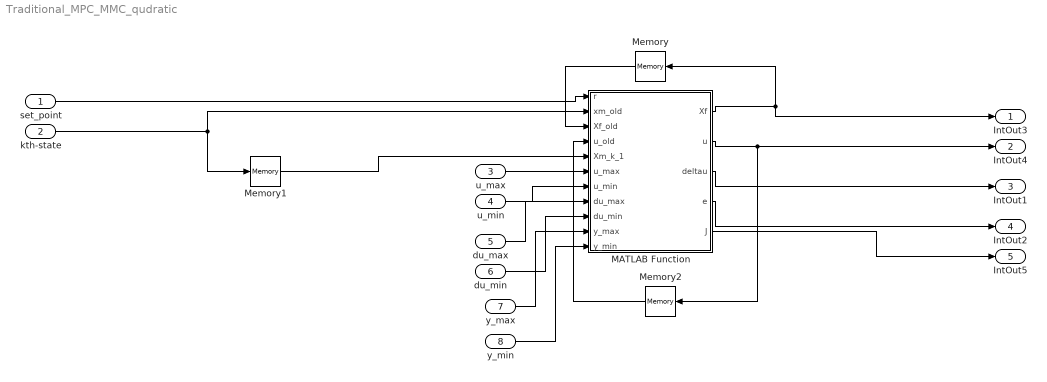
== matlab function Traditional_MPC_MMC_qudratic/MATLAB Function ==
function [Xf,u,deltau,e,J] = fcn(r,xm_old,Xf_old,u_old,Xm_k_1,u_max,u_min,du_max,du_min,y_max,y_min)
D = []; 
D= coder.load('initial_qudratic_paper_traditional_MPC.mat'); 

%%% model-plant mismatch error 
xm=D.Ap*xm_old+D.Bp*(u_old+D.up);
y_model=D.Cp*xm;
e = (y_model - xm_old); 
g = -(D.PhiT_Q_R_bar*r- D.PhiT_Q_F*(D.Xf+Xf_old)- D.PhiT_Q_Ie*(D.e+e)); 
%%% with one step output constraint there is no time over flow
B_LHS=[D.bduMax*du_max;-D.bduMin*du_min; D.Iu*(u_max-u_old);-D.Iu*(u_min-u_old);y_max-D.F(159,:)*(D.Xf+Xf_old);-y_min+D.F(159,:)*(D.Xf+Xf_old)]; %%F(4,:) indicate k+1 
%B_LHS=[D.bduMax*du_max;-D.bduMin*du_min; D.Iu*(u_max-u_old);-D.Iu*(u_min-u_old)];
%DeltaU = -D.H\g;
DeltaU = QPhild(D.H,g,D.C_LHS,B_LHS);
deltau= DeltaU(1:D.m,:);
J = DeltaU'*D.H*DeltaU + 2*DeltaU'*g;
u=D.up+u_old+deltau;
y = xm_old;
y_delta_k=y-Xm_k_1;
Xf=[y_delta_k;y];
end

/*
 * Academic License - for use in teaching, academic research, and meeting
 * course requirements at degree granting institutions only.  Not for
 * government, commercial, or other organizational use.
 *
 * File: Traditional_MPC_MMC_qudratic.c
 *
 * Code generated for Simulink model 'Traditional_MPC_MMC_qudratic'.
 *
 * Model version                  : 1.34
 * Simulink Coder version         : 9.2 (R2019b) 18-Jul-2019
 * C/C++ source code generated on : Wed Feb  9 19:52:32 2022
 *
 * Target selection: ert.tlc
 * Embedded hardware selection: 32-bit Generic
 * Code generation objectives: Unspecified
 * Validation result: Not run
 */

#include "Traditional_MPC_MMC_qudratic.h"
#include "Traditional_MPC_MMC_qudratic_private.h"

/* Block states (default storage) */
D_Work_Traditional_MPC_MMC_qudr Traditional_MPC_MMC_qudra_DWork;

/* External inputs (root inport signals with default storage) */
ExternalInputs_Traditional_MPC_ Traditional_MPC_MMC_qudratic_U;

/* External outputs (root outports fed by signals with default storage) */
ExternalOutputs_Traditional_MPC Traditional_MPC_MMC_qudratic_Y;

/* Real-time model */
RT_MODEL_Traditional_MPC_MMC_qu Traditional_MPC_MMC_qudratic_M_;
RT_MODEL_Traditional_MPC_MMC_qu *const Traditional_MPC_MMC_qudratic_M =
  &Traditional_MPC_MMC_qudratic_M_;

/* Forward declaration for local functions */
static void Traditional_MPC_MMC_qudr_xgetrf(real_T A[25], int32_T ipiv[5],
  int32_T *info);
static void Traditional_MPC_MMC_qu_mldivide(const real_T A[25], real_T B[5]);
static void Traditional_MPC_MMC__mldivide_g(const real_T A[25], real_T B[110]);
static void Traditional_MPC_MMC_qudr_QPhild(const real_T H[25], const real_T f[5],
  const real_T A_cons[110], const real_T b[22], real_T eta[5]);

/* Function for MATLAB Function: '<Root>/MATLAB Function' */
static void Traditional_MPC_MMC_qudr_xgetrf(real_T A[25], int32_T ipiv[5],
  int32_T *info)
{
  int32_T j;
  int32_T c;
  int32_T ix;
  real_T smax;
  int32_T k;
  int32_T iy;
  real_T y;
  int32_T c_ix;
  int32_T d;
  int32_T ijA;
  for (j = 0; j < 5; j++) {
    ipiv[j] = j + 1;
  }

  *info = 0;
  for (j = 0; j < 4; j++) {
    c = j * 6;
    iy = 0;
    ix = c;
    smax = fabs(A[c]);
    for (k = 2; k <= 5 - j; k++) {
      ix++;
      y = fabs(A[ix]);
      if (y > smax) {
        iy = k - 1;
        smax = y;
      }
    }

    if (A[c + iy] != 0.0) {
      if (iy != 0) {
        iy += j;
        ipiv[j] = iy + 1;
        ix = j;
        for (k = 0; k < 5; k++) {
          smax = A[ix];
          A[ix] = A[iy];
          A[iy] = smax;
          ix += 5;
          iy += 5;
        }
      }

      iy = (c - j) + 5;
      for (ix = c + 1; ix < iy; ix++) {
        A[ix] /= A[c];
      }
    } else {
      *info = j + 1;
    }

    iy = c;
    ix = c + 5;
    for (k = 0; k <= 3 - j; k++) {
      if (A[ix] != 0.0) {
        smax = -A[ix];
        c_ix = c + 1;
        d = (iy - j) + 10;
        for (ijA = iy + 6; ijA < d; ijA++) {
          A[ijA] += A[c_ix] * smax;
          c_ix++;
        }
      }

      ix += 5;
      iy += 5;
    }
  }

  if ((*info == 0) && (!(A[24] != 0.0))) {
    *info = 5;
  }
}

/* Function for MATLAB Function: '<Root>/MATLAB Function' */
static void Traditional_MPC_MMC_qu_mldivide(const real_T A[25], real_T B[5])
{
  real_T temp;
  real_T b_A[25];
  int32_T ipiv[5];
  int32_T info;
  int32_T kAcol;
  int32_T i;
  memcpy(&b_A[0], &A[0], 25U * sizeof(real_T));
  Traditional_MPC_MMC_qudr_xgetrf(b_A, ipiv, &info);
  if (ipiv[0] != 1) {
    temp = B[0];
    B[0] = B[ipiv[0] - 1];
    B[ipiv[0] - 1] = temp;
  }

  if (ipiv[1] != 2) {
    temp = B[1];
    B[1] = B[ipiv[1] - 1];
    B[ipiv[1] - 1] = temp;
  }

  if (ipiv[2] != 3) {
    temp = B[2];
    B[2] = B[ipiv[2] - 1];
    B[ipiv[2] - 1] = temp;
  }

  if (ipiv[3] != 4) {
    temp = B[3];
    B[3] = B[ipiv[3] - 1];
    B[ipiv[3] - 1] = temp;
  }

  for (info = 0; info < 5; info++) {
    kAcol = 5 * info;
    if (B[info] != 0.0) {
      for (i = info + 1; i + 1 < 6; i++) {
        B[i] -= b_A[i + kAcol] * B[info];
      }
    }
  }

  for (info = 4; info >= 0; info--) {
    kAcol = 5 * info;
    if (B[info] != 0.0) {
      B[info] /= b_A[info + kAcol];
      for (i = 0; i < info; i++) {
        B[i] -= b_A[i + kAcol] * B[info];
      }
    }
  }
}

/* Function for MATLAB Function: '<Root>/MATLAB Function' */
static void Traditional_MPC_MMC__mldivide_g(const real_T A[25], real_T B[110])
{
  real_T temp;
  int32_T ip;
  real_T b_A[25];
  int32_T ipiv[5];
  int32_T info;
  int32_T xj;
  int32_T kAcol;
  int32_T i;
  int32_T tmp;
  int32_T tmp_0;
  memcpy(&b_A[0], &A[0], 25U * sizeof(real_T));
  Traditional_MPC_MMC_qudr_xgetrf(b_A, ipiv, &info);
  for (info = 0; info < 4; info++) {
    if (info + 1 != ipiv[info]) {
      ip = ipiv[info] - 1;
      for (xj = 0; xj < 22; xj++) {
        kAcol = 5 * xj + info;
        temp = B[kAcol];
        tmp = 5 * xj + ip;
        B[kAcol] = B[tmp];
        B[tmp] = temp;
      }
    }
  }

  for (info = 0; info < 22; info++) {
    ip = 5 * info;
    for (xj = 0; xj < 5; xj++) {
      kAcol = 5 * xj;
      tmp = xj + ip;
      if (B[tmp] != 0.0) {
        for (i = xj + 2; i < 6; i++) {
          tmp_0 = (i + ip) - 1;
          B[tmp_0] -= b_A[(i + kAcol) - 1] * B[tmp];
        }
      }
    }
  }

  for (info = 0; info < 22; info++) {
    ip = 5 * info;
    for (xj = 4; xj >= 0; xj--) {
      kAcol = 5 * xj;
      tmp = xj + ip;
      if (B[tmp] != 0.0) {
        B[tmp] /= b_A[xj + kAcol];
        for (i = 0; i < xj; i++) {
          tmp_0 = i + ip;
          B[tmp_0] -= B[tmp] * b_A[i + kAcol];
        }
      }
    }
  }
}

/* Function for MATLAB Function: '<Root>/MATLAB Function' */
static void Traditional_MPC_MMC_qudr_QPhild(const real_T H[25], const real_T f[5],
  const real_T A_cons[110], const real_T b[22], real_T eta[5])
{
  real_T kk;
  real_T P[484];
  real_T d[22];
  real_T lambda[22];
  real_T b_b[110];
  real_T c_b[5];
  real_T b_b_tmp[110];
  int32_T b_i;
  int32_T i;
  real_T H_0[25];
  real_T A_cons_0;
  real_T P_0;
  int32_T i_0;
  int32_T u1_tmp;
  boolean_T exitg1;
  for (i = 0; i < 5; i++) {
    eta[i] = f[i];
  }

  for (u1_tmp = 0; u1_tmp < 25; u1_tmp++) {
    H_0[u1_tmp] = -H[u1_tmp];
  }

  Traditional_MPC_MMC_qu_mldivide(H_0, eta);
  kk = 0.0;
  for (i = 0; i < 22; i++) {
    A_cons_0 = 0.0;
    for (u1_tmp = 0; u1_tmp < 5; u1_tmp++) {
      A_cons_0 += A_cons[22 * u1_tmp + i] * eta[u1_tmp];
    }

    if (A_cons_0 > b[i]) {
      kk++;
    }
  }

  if (!(kk == 0.0)) {
    for (u1_tmp = 0; u1_tmp < 22; u1_tmp++) {
      for (i = 0; i < 5; i++) {
        b_b_tmp[i + 5 * u1_tmp] = A_cons[22 * i + u1_tmp];
      }
    }

    memcpy(&b_b[0], &b_b_tmp[0], 110U * sizeof(real_T));
    Traditional_MPC_MMC__mldivide_g(H, b_b);
    for (u1_tmp = 0; u1_tmp < 22; u1_tmp++) {
      for (i = 0; i < 22; i++) {
        b_i = i + 22 * u1_tmp;
        P[b_i] = 0.0;
        for (i_0 = 0; i_0 < 5; i_0++) {
          P[b_i] += A_cons[22 * i_0 + i] * b_b[5 * u1_tmp + i_0];
        }
      }
    }

    for (i = 0; i < 5; i++) {
      c_b[i] = f[i];
    }

    Traditional_MPC_MMC_qu_mldivide(H, c_b);
    for (i = 0; i < 22; i++) {
      kk = 0.0;
      for (u1_tmp = 0; u1_tmp < 5; u1_tmp++) {
        kk += A_cons[22 * u1_tmp + i] * c_b[u1_tmp];
      }

      d[i] = kk + b[i];
      lambda[i] = 0.0;
    }

    i = 0;
    exitg1 = false;
    while ((!exitg1) && (i < 38)) {
      kk = 0.0;
      for (b_i = 0; b_i < 22; b_i++) {
        A_cons_0 = lambda[b_i];
        P_0 = 0.0;
        for (u1_tmp = 0; u1_tmp < 22; u1_tmp++) {
          P_0 += P[22 * u1_tmp + b_i] * lambda[u1_tmp];
        }

        u1_tmp = 22 * b_i + b_i;
        P_0 = -((P_0 - P[u1_tmp] * lambda[b_i]) + d[b_i]) / P[u1_tmp];
        if ((0.0 > P_0) || rtIsNaN(P_0)) {
          lambda[b_i] = 0.0;
        } else {
          lambda[b_i] = P_0;
        }

        A_cons_0 = lambda[b_i] - A_cons_0;
        kk += A_cons_0 * A_cons_0;
      }

      if (kk < 1.0E-10) {
        exitg1 = true;
      } else {
        i++;
      }
    }

    memcpy(&b_b[0], &b_b_tmp[0], 110U * sizeof(real_T));
    Traditional_MPC_MMC__mldivide_g(H, b_b);
    for (i = 0; i < 5; i++) {
      c_b[i] = f[i];
    }

    for (u1_tmp = 0; u1_tmp < 25; u1_tmp++) {
      H_0[u1_tmp] = -H[u1_tmp];
    }

    Traditional_MPC_MMC_qu_mldivide(H_0, c_b);
    for (u1_tmp = 0; u1_tmp < 5; u1_tmp++) {
      kk = 0.0;
      for (i = 0; i < 22; i++) {
        kk += b_b[5 * i + u1_tmp] * lambda[i];
      }

      eta[u1_tmp] = c_b[u1_tmp] - kk;
    }
  }
}

/* Model step function */
void Traditional_MPC_MMC_qudratic_step(void)
{
  real_T g[5];
  real_T rtb_Memory[10];
  real_T rtb_Memory2[5];
  real_T rtb_deltau[5];
  real_T rtb_e[5];
  int32_T i;
  real_T tmp[22];
  real_T f_a[5];
  real_T b_a[5];
  real_T c_a[5];
  real_T tmp_0[5];
  real_T h_a;
  int32_T i_0;
  real_T rtb_Memory2_o;
  real_T h_a_tmp;
  int32_T a_tmp;
  static const real_T e_a[25] = { 0.99999999862857147, -3.9999999966476194E-5,
    0.0, 0.0, 0.0, 3.9999999966476194E-5, 0.99999999862857147, 0.0, 0.0, 0.0,
    0.0, 0.0, 0.99999999942857143, 0.0, 0.0, 0.0, 0.0, 0.0, 0.99999993710570145,
    1.9999998744780695E-5, 0.0, 0.0, 0.0, -1.9999998744780695E-5,
    0.99999993710570145 };

  static const real_T f_a_0[25] = { -5.7142857111292513E-6,
    1.1428570788355223E-10, -0.0, 0.0, -0.0, -1.1428570788355222E-10,
    -5.7142857111292522E-6, -0.0, 0.0, -0.0, -0.0, 0.0, -5.7142857112779657E-6,
    0.0, -0.0, -0.0, 0.0, -0.0, 1.0362693974986372E-5, 1.0362694214141444E-10,
    -0.0, 0.0, -0.0, -1.0362694214141179E-10, 1.0362693974986372E-5 };

  static const int8_T a[25] = { 1, 0, 0, 0, 0, 0, 1, 0, 0, 0, 0, 0, 1, 0, 0, 0,
    0, 0, 1, 0, 0, 0, 0, 0, 1 };

  static const real_T b_a_0[25] = { -0.0030171424136516221,
    -1.3074284455250352E-6, 0.0, 0.0, 0.0, 1.3074284455250352E-6,
    -0.0030171424136516225, 0.0, 0.0, 0.0, 0.0, 0.0, -0.0030171428377392551, 0.0,
    0.0, 0.0, 0.0, 0.0, 0.005471498681898522, -1.1854909973102506E-6, 0.0, 0.0,
    0.0, 1.1854909973102518E-6, 0.005471498681898522 };

  static const real_T c_a_0[50] = { -0.065371422112884991, 1.3074285151248935E-6,
    0.0, 0.0, 0.0, -1.3074285151248617E-6, -0.065371422112885033, 0.0, 0.0, 0.0,
    0.0, 0.0, -0.0653714276267048, 0.0, 0.0, 0.0, 0.0, 0.0, 0.11854903545409806,
    1.1854903272607471E-6, 0.0, 0.0, 0.0, -1.1854903272607196E-6,
    0.11854903545409806, -0.0030171424136516221, -1.3074284455250352E-6, 0.0,
    0.0, 0.0, 1.3074284455250352E-6, -0.0030171424136516225, 0.0, 0.0, 0.0, 0.0,
    0.0, -0.0030171428377392551, 0.0, 0.0, 0.0, 0.0, 0.0, 0.005471498681898522,
    -1.1854909973102506E-6, 0.0, 0.0, 0.0, 1.1854909973102518E-6,
    0.005471498681898522 };

  static const real_T d_a[25] = { -0.0030158349852060966, -0.0030184498420971475,
    -0.0030171428377392551, 0.0054726841728958324, 0.0054703131909012116,
    -0.0030158349852060966, -0.0030184498420971475, -0.0030171428377392551,
    0.0054726841728958324, 0.0054703131909012116, -0.0030158349852060966,
    -0.0030184498420971475, -0.0030171428377392551, 0.0054726841728958324,
    0.0054703131909012116, -0.0030158349852060966, -0.0030184498420971475,
    -0.0030171428377392551, 0.0054726841728958324, 0.0054703131909012116,
    -0.0030158349852060966, -0.0030184498420971475, -0.0030171428377392551,
    0.0054726841728958324, 0.0054703131909012116 };

  static const real_T h_a_0[10] = { 0.0, 0.0, 0.0, 31.999964609435363,
    -0.010559985283843616, 0.0, 0.0, 0.0, 1.0, 0.0 };

  static const real_T b[25] = { 0.20000037355098366, -8.7089773252662577E-26,
    0.0, 0.0, 0.0, -8.7089773252662577E-26, 0.20000037355098366, 0.0, 0.0, 0.0,
    0.0, 0.0, 0.20000037355101505, 0.0, 0.0, 0.0, 0.0, 0.0, 0.20000122848745258,
    2.7641300437200276E-25, 0.0, 0.0, 0.0, 2.7641300437200276E-25,
    0.20000122848745258 };

  static const real_T c[110] = { 1.0, 0.0, 0.0, 0.0, 0.0, -1.0, -0.0, -0.0, -0.0,
    -0.0, 1.0, 0.0, 0.0, 0.0, 0.0, -1.0, -0.0, -0.0, -0.0, -0.0, 0.0, -0.0, 0.0,
    1.0, 0.0, 0.0, 0.0, -0.0, -1.0, -0.0, -0.0, -0.0, 0.0, 1.0, 0.0, 0.0, 0.0,
    -0.0, -1.0, -0.0, -0.0, -0.0, 0.0, -0.0, 0.0, 0.0, 1.0, 0.0, 0.0, -0.0, -0.0,
    -1.0, -0.0, -0.0, 0.0, 0.0, 1.0, 0.0, 0.0, -0.0, -0.0, -1.0, -0.0, -0.0, 0.0,
    -0.0, 0.0, 0.0, 0.0, 1.0, 0.0, -0.0, -0.0, -0.0, -1.0, -0.0, 0.0, 0.0, 0.0,
    1.0, 0.0, -0.0, -0.0, -0.0, -1.0, -0.0, 0.00033160586234206885,
    -0.00033160586234206885, 0.0, 0.0, 0.0, 0.0, 1.0, -0.0, -0.0, -0.0, -0.0,
    -1.0, 0.0, 0.0, 0.0, 0.0, 1.0, -0.0, -0.0, -0.0, -0.0, -1.0,
    -1.0611384420129266E-7, 1.0611384420129266E-7 };

  static const int8_T g_a[25] = { -1, 0, 0, 0, 0, 0, -1, 0, 0, 0, 0, 0, -1, 0, 0,
    0, 0, 0, -1, 0, 0, 0, 0, 0, -1 };

  /* Memory: '<Root>/Memory' */
  memcpy(&rtb_Memory[0], &Traditional_MPC_MMC_qudra_DWork.Memory_PreviousInput[0],
         10U * sizeof(real_T));

  /* MATLAB Function 'MATLAB Function': '<S1>:1' */
  /* '<S1>:1:6' */
  /* '<S1>:1:7' */
  /* '<S1>:1:9' */
  /* '<S1>:1:11' */
  /* '<S1>:1:14' */
  /* '<S1>:1:8' */
  for (i = 0; i < 5; i++) {
    /* Memory: '<Root>/Memory2' */
    rtb_Memory2_o = Traditional_MPC_MMC_qudra_DWork.Memory2_PreviousInput[i];

    /* MATLAB Function: '<Root>/MATLAB Function' incorporates:
     *  Inport: '<Root>/kth-state'
     */
    rtb_e[i] = rtb_Memory2_o;
    rtb_deltau[i] = 0.0;
    for (i_0 = 0; i_0 < 5; i_0++) {
      rtb_deltau[i] += e_a[5 * i_0 + i] *
        Traditional_MPC_MMC_qudratic_U.kthstate[i_0];
    }

    /* Memory: '<Root>/Memory2' */
    rtb_Memory2[i] = rtb_Memory2_o;
  }

  /* MATLAB Function: '<Root>/MATLAB Function' incorporates:
   *  Inport: '<Root>/du_max'
   *  Inport: '<Root>/du_min'
   *  Inport: '<Root>/kth-state'
   *  Inport: '<Root>/set_point'
   *  Inport: '<Root>/u_max'
   *  Inport: '<Root>/u_min'
   *  Inport: '<Root>/y_max'
   *  Inport: '<Root>/y_min'
   *  Memory: '<Root>/Memory1'
   */
  for (i_0 = 0; i_0 < 5; i_0++) {
    f_a[i_0] = 0.0;
    for (i = 0; i < 5; i++) {
      f_a[i_0] += f_a_0[5 * i + i_0] * rtb_e[i];
    }

    g[i_0] = rtb_deltau[i_0] + f_a[i_0];
  }

  for (i_0 = 0; i_0 < 5; i_0++) {
    rtb_Memory2_o = 0.0;
    for (i = 0; i < 5; i++) {
      rtb_Memory2_o += (real_T)a[5 * i + i_0] * g[i];
    }

    rtb_e[i_0] = rtb_Memory2_o - Traditional_MPC_MMC_qudratic_U.kthstate[i_0];
  }

  /* '<S1>:1:9' */
  for (i_0 = 0; i_0 < 5; i_0++) {
    b_a[i_0] = 0.0;
    for (i = 0; i < 5; i++) {
      b_a[i_0] += b_a_0[5 * i + i_0] *
        Traditional_MPC_MMC_qudratic_U.set_point[i];
    }

    c_a[i_0] = 0.0;
    for (i = 0; i < 10; i++) {
      c_a[i_0] += c_a_0[5 * i + i_0] * rtb_Memory[i];
    }

    tmp_0[i_0] = rtb_e[i_0];
  }

  /* '<S1>:1:11' */
  /* '<S1>:1:14' */
  for (i_0 = 0; i_0 < 5; i_0++) {
    rtb_Memory2_o = 0.0;
    for (i = 0; i < 5; i++) {
      rtb_Memory2_o += d_a[5 * i + i_0] * tmp_0[i];
    }

    g[i_0] = -((b_a[i_0] - c_a[i_0]) - rtb_Memory2_o);
    rtb_deltau[i_0] = Traditional_MPC_MMC_qudratic_U.u_max[i_0] -
      rtb_Memory2[i_0];
    f_a[i_0] = Traditional_MPC_MMC_qudratic_U.u_min[i_0] - rtb_Memory2[i_0];
  }

  rtb_Memory2_o = 0.0;
  h_a = 0.0;
  for (i_0 = 0; i_0 < 10; i_0++) {
    h_a_tmp = h_a_0[i_0] * rtb_Memory[i_0];
    rtb_Memory2_o += h_a_tmp;
    h_a += h_a_tmp;
  }

  for (i_0 = 0; i_0 < 5; i_0++) {
    b_a[i_0] = 0.0;
    c_a[i_0] = 0.0;
    for (i = 0; i < 5; i++) {
      a_tmp = 5 * i + i_0;
      b_a[i_0] += (real_T)a[a_tmp] * rtb_deltau[i];
      c_a[i_0] += (real_T)g_a[a_tmp] * f_a[i];
    }

    tmp[i_0] = Traditional_MPC_MMC_qudratic_U.du_max;
    tmp[i_0 + 5] = Traditional_MPC_MMC_qudratic_U.du_min;
    tmp[i_0 + 10] = b_a[i_0];
    tmp[i_0 + 15] = c_a[i_0];
  }

  tmp[20] = Traditional_MPC_MMC_qudratic_U.y_max - rtb_Memory2_o;
  tmp[21] = -Traditional_MPC_MMC_qudratic_U.y_min + h_a;
  Traditional_MPC_MMC_qudr_QPhild(b, g, c, tmp, rtb_deltau);

  /* '<S1>:1:15' */
  /* '<S1>:1:16' */
  /* '<S1>:1:17' */
  /* '<S1>:1:19' */
  /* '<S1>:1:20' */
  for (i = 0; i < 5; i++) {
    rtb_Memory[i] = Traditional_MPC_MMC_qudratic_U.kthstate[i] -
      Traditional_MPC_MMC_qudra_DWork.Memory1_PreviousInput[i];
    rtb_Memory[i + 5] = Traditional_MPC_MMC_qudratic_U.kthstate[i];
    rtb_Memory2[i] += rtb_deltau[i];
  }

  /* Outport: '<Root>/IntOut3' */
  memcpy(&Traditional_MPC_MMC_qudratic_Y.Xf[0], &rtb_Memory[0], 10U * sizeof
         (real_T));

  /* MATLAB Function: '<Root>/MATLAB Function' */
  h_a = 0.0;
  rtb_Memory2_o = 0.0;
  for (i = 0; i < 5; i++) {
    /* Outport: '<Root>/IntOut4' */
    Traditional_MPC_MMC_qudratic_Y.u[i] = rtb_Memory2[i];

    /* Outport: '<Root>/IntOut1' */
    Traditional_MPC_MMC_qudratic_Y.delta_u[i] = rtb_deltau[i];

    /* Outport: '<Root>/IntOut2' */
    Traditional_MPC_MMC_qudratic_Y.error[i] = rtb_e[i];

    /* MATLAB Function: '<Root>/MATLAB Function' */
    f_a[i] = 0.0;
    for (i_0 = 0; i_0 < 5; i_0++) {
      f_a[i] += b[5 * i + i_0] * rtb_deltau[i_0];
    }

    h_a += f_a[i] * rtb_deltau[i];
    rtb_Memory2_o += 2.0 * rtb_deltau[i] * g[i];
  }

  /* Outport: '<Root>/IntOut5' incorporates:
   *  MATLAB Function: '<Root>/MATLAB Function'
   */
  Traditional_MPC_MMC_qudratic_Y.J = h_a + rtb_Memory2_o;

  /* Update for Memory: '<Root>/Memory' */
  memcpy(&Traditional_MPC_MMC_qudra_DWork.Memory_PreviousInput[0], &rtb_Memory[0],
         10U * sizeof(real_T));
  for (i = 0; i < 5; i++) {
    /* Update for Memory: '<Root>/Memory2' */
    Traditional_MPC_MMC_qudra_DWork.Memory2_PreviousInput[i] = rtb_Memory2[i];

    /* Update for Memory: '<Root>/Memory1' incorporates:
     *  Inport: '<Root>/kth-state'
     */
    Traditional_MPC_MMC_qudra_DWork.Memory1_PreviousInput[i] =
      Traditional_MPC_MMC_qudratic_U.kthstate[i];
  }
}
